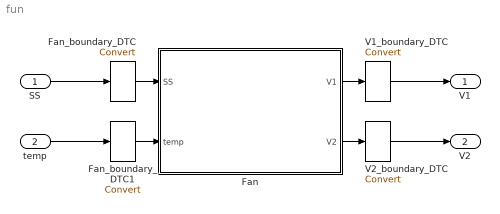
== stateflow chart fun/Fan ==
  state On
    state RightLow
      entry:
      V1  = temp - 20;
      V2 = 10;
    state RighHigh
      entry:
      V1  = temp - 20;
      V2 = 20;
    state LeftLow
      entry:
      V1  = temp - 20;
      V2 = -10;
    state LeftHigh
      entry:
      V1  = temp - 20;
      V2 = -20;
    (default) -> RightLow
    RighHigh -> RighHigh [order 3] : {counter = counter + 1;}
    RightLow -> RighHigh [order 1] : [SS == 1]
    RightLow -> RightLow [order 3] : {counter = counter +1}
    RighHigh -> RightLow [order 1] : [SS == 0]
    RightLow -> LeftLow [order 2] : [counter >= 10]{counter = 0}
    LeftLow -> RightLow [order 2] : [counter >= 10]{counter = 0}
    LeftHigh -> RighHigh [order 1] : [counter >= 5]{counter = 0}
    RighHigh -> LeftHigh [order 2] : [counter >= 5]{counter = 0}
    LeftLow -> LeftHigh [order 1] : [SS == 1]
    LeftLow -> LeftLow [order 3] : {counter = counter + 1}
    LeftHigh -> LeftHigh [order 3] : {counter = counter +1}
    LeftHigh -> LeftLow [order 2] : [SS == 0]
  state Off
    entry:
    V1 = 0;
    V2 = 0;
    counter = 0;
  (default) -> Off
  Off -> On : [temp > 20]
  On -> Off : [temp <= 20]
  data: V1 output fixdt(1,16,0); V2 output fixdt(1,16,0); SS input fixdt(1,16,0); counter local fixdt(1,16,0); temp input fixdt(1,16,0)

//
// File: fun.cpp
//
// Code generated for Simulink model 'fun'.
//
// Model version                  : 1.8
// Simulink Coder version         : 23.2 (R2023b) 01-Aug-2023
// C/C++ source code generated on : Sat Jan  4 11:43:38 2025
//
// Target selection: ert.tlc
// Embedded hardware selection: Intel->x86-64 (Windows64)
// Code generation objectives: Unspecified
// Validation result: Not run
//
#include "fun.h"
#include "rtwtypes.h"
#include <cstring>

// Named constants for Chart: '<Root>/Fan'
const uint8_T fun_IN_LeftHigh{ 1U };

const uint8_T fun_IN_LeftLow{ 2U };

const uint8_T fun_IN_NO_ACTIVE_CHILD{ 0U };

const uint8_T fun_IN_Off{ 1U };

const uint8_T fun_IN_On{ 2U };

const uint8_T fun_IN_RighHigh{ 3U };

const uint8_T fun_IN_RightLow{ 4U };

// Model step function
void fun_step(RT_MODEL_fun_T *const fun_M, real_T fun_U_SS, real_T fun_U_temp,
              real_T *fun_Y_V1, real_T *fun_Y_V2)
{
  DW_fun_T *fun_DW{ fun_M->dwork };

  // Chart: '<Root>/Fan' incorporates:
  //   Inport: '<Root>/SS'
  //   Inport: '<Root>/temp'

  if (fun_DW->is_active_c3_fun == 0U) {
    fun_DW->is_active_c3_fun = 1U;
    fun_DW->is_c3_fun = fun_IN_Off;

    // Outport: '<Root>/V1'
    *fun_Y_V1 = 0.0;

    // Outport: '<Root>/V2'
    *fun_Y_V2 = 0.0;
    fun_DW->counter = 0.0;
  } else if (fun_DW->is_c3_fun == fun_IN_Off) {
    // Outport: '<Root>/V2'
    *fun_Y_V2 = 0.0;
    if (fun_U_temp > 20.0) {
      fun_DW->is_c3_fun = fun_IN_On;
      fun_DW->is_On = fun_IN_RightLow;

      // Outport: '<Root>/V1'
      *fun_Y_V1 = fun_U_temp - 20.0;

      // Outport: '<Root>/V2'
      *fun_Y_V2 = 10.0;
    }

    // case IN_On:
  } else if (fun_U_temp <= 20.0) {
    fun_DW->is_On = fun_IN_NO_ACTIVE_CHILD;
    fun_DW->is_c3_fun = fun_IN_Off;

    // Outport: '<Root>/V1'
    *fun_Y_V1 = 0.0;

    // Outport: '<Root>/V2'
    *fun_Y_V2 = 0.0;
    fun_DW->counter = 0.0;
  } else {
    switch (fun_DW->is_On) {
     case fun_IN_LeftHigh:
      if (fun_DW->counter >= 5.0) {
        fun_DW->counter = 0.0;
        fun_DW->is_On = fun_IN_RighHigh;

        // Outport: '<Root>/V1'
        *fun_Y_V1 = fun_U_temp - 20.0;

        // Outport: '<Root>/V2'
        *fun_Y_V2 = 20.0;
      } else if (fun_U_SS == 0.0) {
        fun_DW->is_On = fun_IN_LeftLow;

        // Outport: '<Root>/V1'
        *fun_Y_V1 = fun_U_temp - 20.0;

        // Outport: '<Root>/V2'
        *fun_Y_V2 = -10.0;
      } else {
        fun_DW->counter++;
        fun_DW->is_On = fun_IN_LeftHigh;

        // Outport: '<Root>/V1'
        *fun_Y_V1 = fun_U_temp - 20.0;

        // Outport: '<Root>/V2'
        *fun_Y_V2 = -20.0;
      }
      break;

     case fun_IN_LeftLow:
      if (fun_U_SS == 1.0) {
        fun_DW->is_On = fun_IN_LeftHigh;

        // Outport: '<Root>/V1'
        *fun_Y_V1 = fun_U_temp - 20.0;

        // Outport: '<Root>/V2'
        *fun_Y_V2 = -20.0;
      } else if (fun_DW->counter >= 10.0) {
        fun_DW->counter = 0.0;
        fun_DW->is_On = fun_IN_RightLow;

        // Outport: '<Root>/V1'
        *fun_Y_V1 = fun_U_temp - 20.0;

        // Outport: '<Root>/V2'
        *fun_Y_V2 = 10.0;
      } else {
        fun_DW->counter++;
        fun_DW->is_On = fun_IN_LeftLow;

        // Outport: '<Root>/V1'
        *fun_Y_V1 = fun_U_temp - 20.0;

        // Outport: '<Root>/V2'
        *fun_Y_V2 = -10.0;
      }
      break;

     case fun_IN_RighHigh:
      if (fun_U_SS == 0.0) {
        fun_DW->is_On = fun_IN_RightLow;

        // Outport: '<Root>/V1'
        *fun_Y_V1 = fun_U_temp - 20.0;

        // Outport: '<Root>/V2'
        *fun_Y_V2 = 10.0;
      } else if (fun_DW->counter >= 5.0) {
        fun_DW->counter = 0.0;
        fun_DW->is_On = fun_IN_LeftHigh;

        // Outport: '<Root>/V1'
        *fun_Y_V1 = fun_U_temp - 20.0;

        // Outport: '<Root>/V2'
        *fun_Y_V2 = -20.0;
      } else {
        fun_DW->counter++;
        fun_DW->is_On = fun_IN_RighHigh;

        // Outport: '<Root>/V1'
        *fun_Y_V1 = fun_U_temp - 20.0;

        // Outport: '<Root>/V2'
        *fun_Y_V2 = 20.0;
      }
      break;

     default:
      // case IN_RightLow:
      if (fun_U_SS == 1.0) {
        fun_DW->is_On = fun_IN_RighHigh;

        // Outport: '<Root>/V1'
        *fun_Y_V1 = fun_U_temp - 20.0;

        // Outport: '<Root>/V2'
        *fun_Y_V2 = 20.0;
      } else if (fun_DW->counter >= 10.0) {
        fun_DW->counter = 0.0;
        fun_DW->is_On = fun_IN_LeftLow;

        // Outport: '<Root>/V1'
        *fun_Y_V1 = fun_U_temp - 20.0;

        // Outport: '<Root>/V2'
        *fun_Y_V2 = -10.0;
      } else {
        fun_DW->counter++;
        fun_DW->is_On = fun_IN_RightLow;

        // Outport: '<Root>/V1'
        *fun_Y_V1 = fun_U_temp - 20.0;

        // Outport: '<Root>/V2'
        *fun_Y_V2 = 10.0;
      }
      break;
    }
  }

  // End of Chart: '<Root>/Fan'
}
